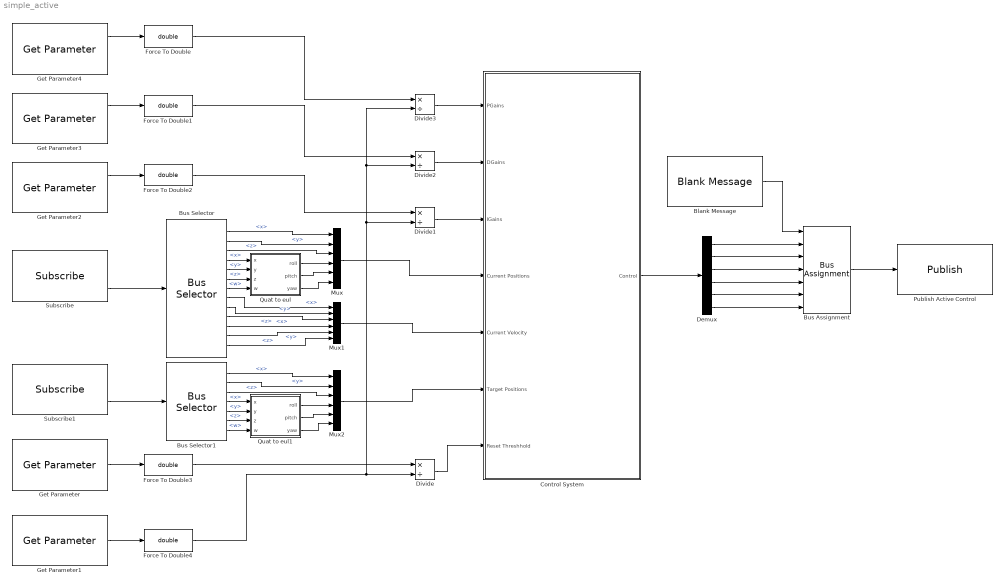
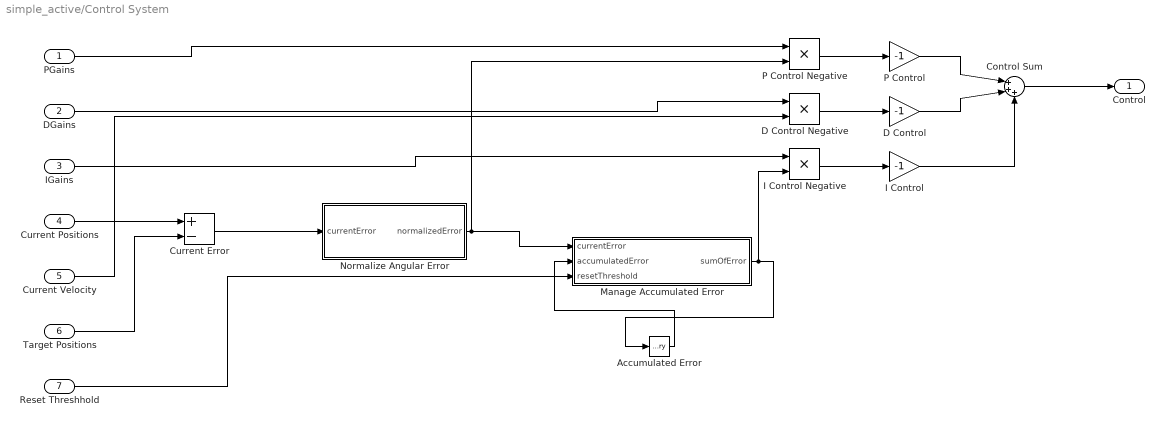
== matlab function simple_active/Quat to eul ==
function [roll, pitch, yaw] = fcn(x,y,z,w)

%convert the quaternion to euler
euler = quat2eul([w,x,y,z]);

roll = euler(3);
pitch = euler(2);
yaw = euler(1);

== matlab function simple_active/Control System/Manage Accumulated Error ==
function sumOfError = fcn(currentError, accumulatedError, resetThreshold)

sum = zeros(1,6);

%check each degree of freedom
for i = 1:6
    sum(i) = accumulatedError(i) + currentError(i);

    if(currentError(i) > resetThreshold)
        sum(i) = 0;
    end

    %reset if nan
    if(isnan(currentError(i)))
        sum(i) = 0;
    end

end

sumOfError = sum;

== matlab function simple_active/Control System/Normalize Angular Error ==
function normalizedError = fcn(currentError)

normalized = zeros(1,6);

normalized(1) = currentError(1);
normalized(2) = currentError(2);
normalized(3) = currentError(3);

%each angular degree of freedom
for i=4:6
    %normalize all error to between postive and negative 180
    normalized(i) = mod(currentError(i) + pi, 2 * pi) - pi;
end

normalizedError = normalized;

== matlab function simple_active/Quat to eul1 ==
function [roll, pitch, yaw] = fcn(x,y,z,w)

%convert the quaternion to euler
euler = quat2eul([w,x,y,z]);

roll = euler(3);
pitch = euler(2);
yaw = euler(1);

if(isnan(roll))
   roll = 0;
   pitch = 0;
   yaw = 0;
end

//
// Academic License - for use in teaching, academic research, and meeting
// course requirements at degree granting institutions only.  Not for
// government, commercial, or other organizational use.
//
// File: simple_active.cpp
//
// Code generated for Simulink model 'simple_active'.
//
// Model version                  : 1.20
// Simulink Coder version         : 9.8 (R2022b) 13-May-2022
// C/C++ source code generated on : Sat Oct 28 01:38:09 2023
//
// Target selection: ert.tlc
// Embedded hardware selection: ARM Compatible->ARM 64-bit (LP64)
// Code generation objectives: Unspecified
// Validation result: Not run
//
#include "simple_active.h"
#include "simple_active_types.h"
#include "rtwtypes.h"
#include <math.h>
#include "simple_active_private.h"

extern "C"
{

#include "rt_nonfinite.h"

}

#include "rmw/qos_profiles.h"
#include "rmw/types.h"
#include <stddef.h>
#include "rt_defines.h"

real_T rt_atan2d_snf(real_T u0, real_T u1)
{
  real_T y;
  if (rtIsNaN(u0) || rtIsNaN(u1)) {
    y = (rtNaN);
  } else if (rtIsInf(u0) && rtIsInf(u1)) {
    int32_T tmp;
    int32_T tmp_0;
    if (u0 > 0.0) {
      tmp = 1;
    } else {
      tmp = -1;
    }

    if (u1 > 0.0) {
      tmp_0 = 1;
    } else {
      tmp_0 = -1;
    }

    y = atan2(static_cast<real_T>(tmp), static_cast<real_T>(tmp_0));
  } else if (u1 == 0.0) {
    if (u0 > 0.0) {
      y = RT_PI / 2.0;
    } else if (u0 < 0.0) {
      y = -(RT_PI / 2.0);
    } else {
      y = 0.0;
    }
  } else {
    y = atan2(u0, u1);
  }

  return y;
}

void simple_active::simple_active_binary_expand_op(real_T in1[3], const int8_T
  in2_data[], const real_T in3_data[], const int32_T *in3_size, const real_T
  in4[4], const int32_T in5_size[2])
{
  int32_T loop_ub;

  // MATLAB Function: '<Root>/Quat to eul1' incorporates:
  //   MATLAB Function: '<Root>/Quat to eul'

  loop_ub = in5_size[1] == 1 ? *in3_size : in5_size[1];
  for (int32_T i = 0; i < loop_ub; i++) {
    in1[in2_data[0] - 1] = -in3_data[0] * 2.0 * rt_atan2d_snf(in4[1], in4[0]);
  }

  // End of MATLAB Function: '<Root>/Quat to eul1'
}

void simple_active::simple_activ_SystemCore_setup_g
  (ros_slros2_internal_block_Sub_T *obj)
{
  rmw_qos_durability_policy_t durability;
  rmw_qos_history_policy_t history;
  rmw_qos_profile_t qos_profile;
  rmw_qos_reliability_policy_t reliability;
  static const char_T tmp[24] = { '/', 't', 'a', 'l', 'o', 's', '/', 'o', 'd',
    'o', 'm', 'e', 't', 'r', 'y', '/', 'f', 'i', 'l', 't', 'e', 'r', 'e', 'd' };

  obj->isInitialized = 1;
  qos_profile = rmw_qos_profile_default;
  history = RMW_QOS_POLICY_HISTORY_KEEP_LAST;
  reliability = RMW_QOS_POLICY_RELIABILITY_RELIABLE;
  durability = RMW_QOS_POLICY_DURABILITY_VOLATILE;
  SET_QOS_VALUES(qos_profile, history, (size_t)1.0, durability, reliability);
  for (int32_T i = 0; i < 24; i++) {
    simple_active_B.b_zeroDelimTopic_b[i] = tmp[i];
  }

  simple_active_B.b_zeroDelimTopic_b[24] = '\x00';
  Sub_simple_active_33.createSubscriber(&simple_active_B.b_zeroDelimTopic_b[0],
    qos_profile);
  obj->isSetupComplete = true;
}

void simple_active::simple_acti_SystemCore_setup_gu
  (ros_slros2_internal_block_Sub_T *obj)
{
  rmw_qos_durability_policy_t durability;
  rmw_qos_history_policy_t history;
  rmw_qos_profile_t qos_profile;
  rmw_qos_reliability_policy_t reliability;
  static const char_T tmp[36] = { '/', 't', 'a', 'l', 'o', 's', '/', 's', 'i',
    'm', 'p', 'l', 'e', '_', 'a', 'c', 't', 'i', 'v', 'e', '/', 't', 'a', 'r',
    'g', 'e', 't', '_', 'p', 'o', 's', 'i', 't', 'i', 'o', 'n' };

  obj->isInitialized = 1;
  qos_profile = rmw_qos_profile_default;
  history = RMW_QOS_POLICY_HISTORY_KEEP_LAST;
  reliability = RMW_QOS_POLICY_RELIABILITY_RELIABLE;
  durability = RMW_QOS_POLICY_DURABILITY_VOLATILE;
  SET_QOS_VALUES(qos_profile, history, (size_t)1.0, durability, reliability);
  for (int32_T i = 0; i < 36; i++) {
    simple_active_B.b_zeroDelimTopic[i] = tmp[i];
  }

  simple_active_B.b_zeroDelimTopic[36] = '\x00';
  Sub_simple_active_39.createSubscriber(&simple_active_B.b_zeroDelimTopic[0],
    qos_profile);
  obj->isSetupComplete = true;
}

void simple_active::simple_active_SystemCore_setup
  (ros_slros2_internal_block_Pub_T *obj)
{
  rmw_qos_durability_policy_t durability;
  rmw_qos_history_policy_t history;
  rmw_qos_profile_t qos_profile;
  rmw_qos_reliability_policy_t reliability;
  static const char_T tmp[35] = { '/', 't', 'a', 'l', 'o', 's', '/', 'c', 'o',
    'n', 't', 'r', 'o', 'l', 'l', 'e', 'r', '/', 'a', 'c', 't', 'i', 'v', 'e',
    '_', 'b', 'o', 'd', 'y', '_', 'f', 'o', 'r', 'c', 'e' };

  obj->isInitialized = 1;
  qos_profile = rmw_qos_profile_default;
  history = RMW_QOS_POLICY_HISTORY_KEEP_LAST;
  reliability = RMW_QOS_POLICY_RELIABILITY_RELIABLE;
  durability = RMW_QOS_POLICY_DURABILITY_VOLATILE;
  SET_QOS_VALUES(qos_profile, history, (size_t)1.0, durability, reliability);
  for (int32_T i = 0; i < 35; i++) {
    simple_active_B.b_zeroDelimTopic_c[i] = tmp[i];
  }

  simple_active_B.b_zeroDelimTopic_c[35] = '\x00';
  Pub_simple_active_53.createPublisher(&simple_active_B.b_zeroDelimTopic_c[0],
    qos_profile);
  obj->isSetupComplete = true;
}

// Model step function
void simple_active::step()
{
  real_T euler_tmp;
  int32_T e_size[2];
  int32_T e_size_0[2];
  int32_T k;
  int32_T trueCount;
  uint32_T len;
  int8_T f_data;
  int8_T f_data_0;
  boolean_T mask1;
  boolean_T mask2;

  // MATLABSystem: '<Root>/Get Parameter4'
  ParamGet_simple_active_48.getParameter(6U, &simple_active_B.value[0], &len);

  // MATLABSystem: '<Root>/Get Parameter1'
  ParamGet_simple_active_44.getParameter(&simple_active_B.value_cv);

  // MATLABSystem: '<S6>/SourceBlock'
  mask1 = Sub_simple_active_33.getLatestMessage(&simple_active_B.b_varargout_2);

  // Outputs for Enabled SubSystem: '<S6>/Enabled Subsystem' incorporates:
  //   EnablePort: '<S10>/Enable'

  if (mask1) {
    // SignalConversion generated from: '<S10>/In1'
    simple_active_B.In1 = simple_active_B.b_varargout_2;
  }

  // End of MATLABSystem: '<S6>/SourceBlock'
  // End of Outputs for SubSystem: '<S6>/Enabled Subsystem'

  // MATLAB Function: '<Root>/Quat to eul'
  simple_active_B.Divide = 1.0 / sqrt
    (((simple_active_B.In1.pose.pose.orientation.w *
       simple_active_B.In1.pose.pose.orientation.w +
       simple_active_B.In1.pose.pose.orientation.x *
       simple_active_B.In1.pose.pose.orientation.x) +
      simple_active_B.In1.pose.pose.orientation.y *
      simple_active_B.In1.pose.pose.orientation.y) +
     simple_active_B.In1.pose.pose.orientation.z *
     simple_active_B.In1.pose.pose.orientation.z);
  simple_active_B.y[0] = simple_active_B.In1.pose.pose.orientation.w *
    simple_active_B.Divide;
  simple_active_B.y[1] = simple_active_B.In1.pose.pose.orientation.x *
    simple_active_B.Divide;
  simple_active_B.y[2] = simple_active_B.In1.pose.pose.orientation.y *
    simple_active_B.Divide;
  simple_active_B.y[3] = simple_active_B.In1.pose.pose.orientation.z *
    simple_active_B.Divide;
  simple_active_B.aSinInput = (simple_active_B.y[1] * simple_active_B.y[3] -
    simple_active_B.y[0] * simple_active_B.y[2]) * -2.0;
  mask1 = (simple_active_B.aSinInput >= 0.99999999999999778);
  mask2 = (simple_active_B.aSinInput <= -0.99999999999999778);
  if (mask1) {
    simple_active_B.aSinInput = 1.0;
  }

  if (mask2) {
    simple_active_B.aSinInput = -1.0;
  }

  mask1 = (mask1 || mask2);
  simple_active_B.Divide = simple_active_B.y[0] * simple_active_B.y[0];
  simple_active_B.q = simple_active_B.y[1] * simple_active_B.y[1];
  simple_active_B.euler_tmp = simple_active_B.y[2] * simple_active_B.y[2];
  euler_tmp = simple_active_B.y[3] * simple_active_B.y[3];
  simple_active_B.euler[0] = rt_atan2d_snf((simple_active_B.y[1] *
    simple_active_B.y[2] + simple_active_B.y[0] * simple_active_B.y[3]) * 2.0,
    ((simple_active_B.Divide + simple_active_B.q) - simple_active_B.euler_tmp) -
    euler_tmp);
  simple_active_B.euler[1] = asin(simple_active_B.aSinInput);
  simple_active_B.euler[2] = rt_atan2d_snf((simple_active_B.y[2] *
    simple_active_B.y[3] + simple_active_B.y[0] * simple_active_B.y[1]) * 2.0,
    ((simple_active_B.Divide - simple_active_B.q) - simple_active_B.euler_tmp) +
    euler_tmp);
  trueCount = 0;
  if (mask1) {
    trueCount = 1;
  }

  if (trueCount - 1 >= 0) {
    simple_active_B.x_data = simple_active_B.aSinInput;
  }

  for (k = 0; k < trueCount; k++) {
    if (rtIsNaN(simple_active_B.x_data)) {
      simple_active_B.Divide = (rtNaN);
    } else if (simple_active_B.x_data < 0.0) {
      simple_active_B.Divide = -1.0;
    } else {
      simple_active_B.Divide = (simple_active_B.x_data > 0.0);
    }

    simple_active_B.x_data = simple_active_B.Divide;
  }

  k = 0;
  if (mask1) {
    k = 1;
  }

  e_size[0] = 1;
  e_size[1] = k;
  if (mask1) {
    f_data = 1;
  }

  if (trueCount == k) {
    if (trueCount - 1 >= 0) {
      simple_active_B.euler[0] = -simple_active_B.x_data * 2.0 * rt_atan2d_snf
        (simple_active_B.y[1], simple_active_B.y[0]);
    }
  } else {
    simple_active_binary_expand_op(simple_active_B.euler, &f_data,
      &simple_active_B.x_data, &trueCount, simple_active_B.y, e_size);
  }

  trueCount = 0;
  if (mask1) {
    trueCount = 1;
  }

  if (trueCount - 1 >= 0) {
    simple_active_B.euler[2] = 0.0;
  }

  // MATLABSystem: '<S7>/SourceBlock'
  mask1 = Sub_simple_active_39.getLatestMessage(&simple_active_B.b_varargout_2_m);

  // Outputs for Enabled SubSystem: '<S7>/Enabled Subsystem' incorporates:
  //   EnablePort: '<S11>/Enable'

  if (mask1) {
    // SignalConversion generated from: '<S11>/In1'
    simple_active_B.In1_c = simple_active_B.b_varargout_2_m;
  }

  // End of MATLABSystem: '<S7>/SourceBlock'
  // End of Outputs for SubSystem: '<S7>/Enabled Subsystem'

  // MATLAB Function: '<Root>/Quat to eul1'
  simple_active_B.Divide = 1.0 / sqrt(((simple_active_B.In1_c.orientation.w *
    simple_active_B.In1_c.orientation.w + simple_active_B.In1_c.orientation.x *
    simple_active_B.In1_c.orientation.x) + simple_active_B.In1_c.orientation.y *
    simple_active_B.In1_c.orientation.y) + simple_active_B.In1_c.orientation.z *
    simple_active_B.In1_c.orientation.z);
  simple_active_B.y[0] = simple_active_B.In1_c.orientation.w *
    simple_active_B.Divide;
  simple_active_B.y[1] = simple_active_B.In1_c.orientation.x *
    simple_active_B.Divide;
  simple_active_B.y[2] = simple_active_B.In1_c.orientation.y *
    simple_active_B.Divide;
  simple_active_B.y[3] = simple_active_B.In1_c.orientation.z *
    simple_active_B.Divide;
  simple_active_B.aSinInput = (simple_active_B.y[1] * simple_active_B.y[3] -
    simple_active_B.y[0] * simple_active_B.y[2]) * -2.0;
  mask1 = (simple_active_B.aSinInput >= 0.99999999999999778);
  mask2 = (simple_active_B.aSinInput <= -0.99999999999999778);
  if (mask1) {
    simple_active_B.aSinInput = 1.0;
  }

  if (mask2) {
    simple_active_B.aSinInput = -1.0;
  }

  mask1 = (mask1 || mask2);
  simple_active_B.Divide = simple_active_B.y[0] * simple_active_B.y[0];
  simple_active_B.q = simple_active_B.y[1] * simple_active_B.y[1];
  simple_active_B.euler_tmp = simple_active_B.y[2] * simple_active_B.y[2];
  euler_tmp = simple_active_B.y[3] * simple_active_B.y[3];
  simple_active_B.euler_p[0] = rt_atan2d_snf((simple_active_B.y[1] *
    simple_active_B.y[2] + simple_active_B.y[0] * simple_active_B.y[3]) * 2.0,
    ((simple_active_B.Divide + simple_active_B.q) - simple_active_B.euler_tmp) -
    euler_tmp);
  simple_active_B.euler_p[1] = asin(simple_active_B.aSinInput);
  simple_active_B.euler_p[2] = rt_atan2d_snf((simple_active_B.y[2] *
    simple_active_B.y[3] + simple_active_B.y[0] * simple_active_B.y[1]) * 2.0,
    ((simple_active_B.Divide - simple_active_B.q) - simple_active_B.euler_tmp) +
    euler_tmp);
  trueCount = 0;
  if (mask1) {
    trueCount = 1;
  }

  if (trueCount - 1 >= 0) {
    simple_active_B.x_data = simple_active_B.aSinInput;
  }

  for (k = 0; k < trueCount; k++) {
    if (rtIsNaN(simple_active_B.x_data)) {
      simple_active_B.Divide = (rtNaN);
    } else if (simple_active_B.x_data < 0.0) {
      simple_active_B.Divide = -1.0;
    } else {
      simple_active_B.Divide = (simple_active_B.x_data > 0.0);
    }

    simple_active_B.x_data = simple_active_B.Divide;
  }

  k = 0;
  if (mask1) {
    k = 1;
  }

  e_size_0[0] = 1;
  e_size_0[1] = k;
  if (mask1) {
    f_data_0 = 1;
  }

  if (trueCount == k) {
    if (trueCount - 1 >= 0) {
      simple_active_B.euler_p[0] = -simple_active_B.x_data * 2.0 * rt_atan2d_snf
        (simple_active_B.y[1], simple_active_B.y[0]);
    }
  } else {
    simple_active_binary_expand_op(simple_active_B.euler_p, &f_data_0,
      &simple_active_B.x_data, &trueCount, simple_active_B.y, e_size_0);
  }

  trueCount = 0;
  if (mask1) {
    trueCount = 1;
  }

  if (trueCount - 1 >= 0) {
    simple_active_B.euler_p[2] = 0.0;
  }

  // Sum: '<S2>/Current Error' incorporates:
  //   MATLAB Function: '<Root>/Quat to eul1'

  simple_active_B.dv[3] = simple_active_B.euler_p[2];
  simple_active_B.dv[4] = simple_active_B.euler_p[1];
  simple_active_B.dv[5] = simple_active_B.euler_p[0];

  // MATLAB Function: '<Root>/Quat to eul1'
  if (rtIsNaN(simple_active_B.euler_p[2])) {
    // Sum: '<S2>/Current Error'
    simple_active_B.dv[3] = 0.0;
    simple_active_B.dv[4] = 0.0;
    simple_active_B.dv[5] = 0.0;
  }

  // Sum: '<S2>/Current Error' incorporates:
  //   MATLAB Function: '<Root>/Quat to eul'

  simple_active_B.ControlSum[0] = simple_active_B.In1.pose.pose.position.x;
  simple_active_B.ControlSum[1] = simple_active_B.In1.pose.pose.position.y;
  simple_active_B.ControlSum[2] = simple_active_B.In1.pose.pose.position.z;
  simple_active_B.ControlSum[3] = simple_active_B.euler[2];
  simple_active_B.ControlSum[4] = simple_active_B.euler[1];
  simple_active_B.ControlSum[5] = simple_active_B.euler[0];
  simple_active_B.dv[0] = simple_active_B.In1_c.position.x;
  simple_active_B.dv[1] = simple_active_B.In1_c.position.y;
  simple_active_B.dv[2] = simple_active_B.In1_c.position.z;
  for (trueCount = 0; trueCount < 6; trueCount++) {
    simple_active_B.CurrentError[trueCount] =
      simple_active_B.ControlSum[trueCount] - simple_active_B.dv[trueCount];
  }

  // MATLAB Function: '<S2>/Normalize Angular Error'
  simple_active_B.normalizedError[0] = simple_active_B.CurrentError[0];
  simple_active_B.normalizedError[1] = simple_active_B.CurrentError[1];
  simple_active_B.normalizedError[2] = simple_active_B.CurrentError[2];
  if (rtIsNaN(simple_active_B.CurrentError[3] + 3.1415926535897931)) {
    simple_active_B.Divide = (rtNaN);
  } else if (rtIsInf(simple_active_B.CurrentError[3] + 3.1415926535897931)) {
    simple_active_B.Divide = (rtNaN);
  } else if (simple_active_B.CurrentError[3] + 3.1415926535897931 == 0.0) {
    simple_active_B.Divide = 0.0;
  } else {
    simple_active_B.Divide = fmod(simple_active_B.CurrentError[3] +
      3.1415926535897931, 6.2831853071795862);
    mask1 = (simple_active_B.Divide == 0.0);
    if (!mask1) {
      simple_active_B.q = fabs((simple_active_B.CurrentError[3] +
        3.1415926535897931) / 6.2831853071795862);
      mask1 = !(fabs(simple_active_B.q - floor(simple_active_B.q + 0.5)) >
                2.2204460492503131E-16 * simple_active_B.q);
    }

    if (mask1) {
      simple_active_B.Divide = 0.0;
    } else if (simple_active_B.CurrentError[3] + 3.1415926535897931 < 0.0) {
      simple_active_B.Divide += 6.2831853071795862;
    }
  }

  simple_active_B.normalizedError[3] = simple_active_B.Divide -
    3.1415926535897931;
  if (rtIsNaN(simple_active_B.CurrentError[4] + 3.1415926535897931)) {
    simple_active_B.Divide = (rtNaN);
  } else if (rtIsInf(simple_active_B.CurrentError[4] + 3.1415926535897931)) {
    simple_active_B.Divide = (rtNaN);
  } else if (simple_active_B.CurrentError[4] + 3.1415926535897931 == 0.0) {
    simple_active_B.Divide = 0.0;
  } else {
    simple_active_B.Divide = fmod(simple_active_B.CurrentError[4] +
      3.1415926535897931, 6.2831853071795862);
    mask1 = (simple_active_B.Divide == 0.0);
    if (!mask1) {
      simple_active_B.q = fabs((simple_active_B.CurrentError[4] +
        3.1415926535897931) / 6.2831853071795862);
      mask1 = !(fabs(simple_active_B.q - floor(simple_active_B.q + 0.5)) >
                2.2204460492503131E-16 * simple_active_B.q);
    }

    if (mask1) {
      simple_active_B.Divide = 0.0;
    } else if (simple_active_B.CurrentError[4] + 3.1415926535897931 < 0.0) {
      simple_active_B.Divide += 6.2831853071795862;
    }
  }

  simple_active_B.normalizedError[4] = simple_active_B.Divide -
    3.1415926535897931;
  if (rtIsNaN(simple_active_B.CurrentError[5] + 3.1415926535897931)) {
    simple_active_B.Divide = (rtNaN);
  } else if (rtIsInf(simple_active_B.CurrentError[5] + 3.1415926535897931)) {
    simple_active_B.Divide = (rtNaN);
  } else if (simple_active_B.CurrentError[5] + 3.1415926535897931 == 0.0) {
    simple_active_B.Divide = 0.0;
  } else {
    simple_active_B.Divide = fmod(simple_active_B.CurrentError[5] +
      3.1415926535897931, 6.2831853071795862);
    mask1 = (simple_active_B.Divide == 0.0);
    if (!mask1) {
      simple_active_B.q = fabs((simple_active_B.CurrentError[5] +
        3.1415926535897931) / 6.2831853071795862);
      mask1 = !(fabs(simple_active_B.q - floor(simple_active_B.q + 0.5)) >
                2.2204460492503131E-16 * simple_active_B.q);
    }

    if (mask1) {
      simple_active_B.Divide = 0.0;
    } else if (simple_active_B.CurrentError[5] + 3.1415926535897931 < 0.0) {
      simple_active_B.Divide += 6.2831853071795862;
    }
  }

  simple_active_B.normalizedError[5] = simple_active_B.Divide -
    3.1415926535897931;

  // End of MATLAB Function: '<S2>/Normalize Angular Error'

  // MATLABSystem: '<Root>/Get Parameter3'
  ParamGet_simple_active_47.getParameter(6U, &simple_active_B.value_c[0], &len);

  // MATLABSystem: '<Root>/Get Parameter2'
  ParamGet_simple_active_46.getParameter(6U, &simple_active_B.value_k[0], &len);

  // MATLABSystem: '<Root>/Get Parameter'
  ParamGet_simple_active_43.getParameter(&simple_active_B.value_f);

  // Product: '<Root>/Divide' incorporates:
  //   DataTypeConversion: '<Root>/Force To Double3'
  //   DataTypeConversion: '<Root>/Force To Double4'
  //   MATLABSystem: '<Root>/Get Parameter'
  //   MATLABSystem: '<Root>/Get Parameter1'

  simple_active_B.Divide = static_cast<real_T>(simple_active_B.value_f) /
    static_cast<real_T>(simple_active_B.value_cv);

  // Product: '<S2>/D Control Negative'
  simple_active_B.dv[0] = simple_active_B.In1.twist.twist.linear.x;
  simple_active_B.dv[1] = simple_active_B.In1.twist.twist.linear.y;
  simple_active_B.dv[2] = simple_active_B.In1.twist.twist.linear.z;
  simple_active_B.dv[3] = simple_active_B.In1.twist.twist.angular.x;
  simple_active_B.dv[4] = simple_active_B.In1.twist.twist.angular.y;
  simple_active_B.dv[5] = simple_active_B.In1.twist.twist.angular.z;
  for (trueCount = 0; trueCount < 6; trueCount++) {
    // MATLAB Function: '<S2>/Manage Accumulated Error' incorporates:
    //   Memory: '<S2>/Accumulated Error'

    simple_active_B.q = simple_active_B.normalizedError[trueCount];
    simple_active_B.euler_tmp =
      simple_active_DW.AccumulatedError_PreviousInput[trueCount] +
      simple_active_B.q;
    if (simple_active_B.q > simple_active_B.Divide) {
      simple_active_B.euler_tmp = 0.0;
    }

    if (rtIsNaN(simple_active_B.q)) {
      simple_active_B.euler_tmp = 0.0;
    }

    // Sum: '<S2>/Control Sum' incorporates:
    //   DataTypeConversion: '<Root>/Force To Double'
    //   DataTypeConversion: '<Root>/Force To Double1'
    //   DataTypeConversion: '<Root>/Force To Double2'
    //   DataTypeConversion: '<Root>/Force To Double4'
    //   Gain: '<S2>/D Control'
    //   Gain: '<S2>/I Control'
    //   Gain: '<S2>/P Control'
    //   MATLABSystem: '<Root>/Get Parameter1'
    //   MATLABSystem: '<Root>/Get Parameter2'
    //   MATLABSystem: '<Root>/Get Parameter3'
    //   MATLABSystem: '<Root>/Get Parameter4'
    //   Product: '<Root>/Divide1'
    //   Product: '<Root>/Divide2'
    //   Product: '<Root>/Divide3'
    //   Product: '<S2>/D Control Negative'
    //   Product: '<S2>/I Control Negative'
    //   Product: '<S2>/P Control Negative'

    simple_active_B.ControlSum[trueCount] = (static_cast<real_T>
      (simple_active_B.value[trueCount]) / static_cast<real_T>
      (simple_active_B.value_cv) * simple_active_B.q *
      simple_active_P.PControl_Gain + static_cast<real_T>
      (simple_active_B.value_c[trueCount]) / static_cast<real_T>
      (simple_active_B.value_cv) * simple_active_B.dv[trueCount] *
      simple_active_P.DControl_Gain) + static_cast<real_T>
      (simple_active_B.value_k[trueCount]) / static_cast<real_T>
      (simple_active_B.value_cv) * simple_active_B.euler_tmp *
      simple_active_P.IControl_Gain;

    // MATLAB Function: '<S2>/Manage Accumulated Error'
    simple_active_B.CurrentError[trueCount] = simple_active_B.euler_tmp;
  }

  // BusAssignment: '<Root>/Bus Assignment'
  simple_active_B.BusAssignment.linear.x = simple_active_B.ControlSum[0];
  simple_active_B.BusAssignment.linear.y = simple_active_B.ControlSum[1];
  simple_active_B.BusAssignment.linear.z = simple_active_B.ControlSum[2];
  simple_active_B.BusAssignment.angular.x = simple_active_B.ControlSum[3];
  simple_active_B.BusAssignment.angular.y = simple_active_B.ControlSum[4];
  simple_active_B.BusAssignment.angular.z = simple_active_B.ControlSum[5];

  // MATLABSystem: '<S3>/SinkBlock'
  Pub_simple_active_53.publish(&simple_active_B.BusAssignment);

  // Update for Memory: '<S2>/Accumulated Error'
  for (trueCount = 0; trueCount < 6; trueCount++) {
    simple_active_DW.AccumulatedError_PreviousInput[trueCount] =
      simple_active_B.CurrentError[trueCount];
  }

  // End of Update for Memory: '<S2>/Accumulated Error'
}
